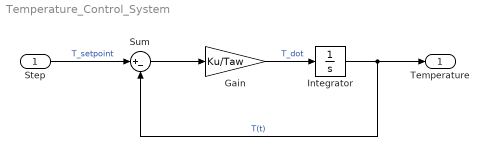
/*
 * File: Temperature_Control_System.c
 *
 * Code generated for Simulink model 'Temperature_Control_System'.
 *
 * Model version                  : 1.1
 * Simulink Coder version         : 24.2 (R2024b) 21-Jun-2024
 * C/C++ source code generated on : Thu May 29 09:29:35 2025
 *
 * Target selection: ert.tlc
 * Embedded hardware selection: Intel->x86-64 (Windows64)
 * Code generation objectives:
 *    1. Execution efficiency
 *    2. RAM efficiency
 * Validation result: Not run
 */

#include "Temperature_Control_System.h"

/* Private macros used by the generated code to access rtModel */
#ifndef rtmIsMajorTimeStep
#define rtmIsMajorTimeStep(rtm)        (((rtm)->Timing.simTimeStep) == MAJOR_TIME_STEP)
#endif

#ifndef rtmIsMinorTimeStep
#define rtmIsMinorTimeStep(rtm)        (((rtm)->Timing.simTimeStep) == MINOR_TIME_STEP)
#endif

#ifndef rtmSetTPtr
#define rtmSetTPtr(rtm, val)           ((rtm)->Timing.t = (val))
#endif

/* Continuous states */
X rtX;

/* Disabled State Vector */
XDis rtXDis;

/* Block signals and states (default storage) */
DW rtDW;

/* External inputs (root inport signals with default storage) */
ExtU rtU;

/* External outputs (root outports fed by signals with default storage) */
ExtY rtY;

/* Real-time model */
static RT_MODEL rtM_;
RT_MODEL *const rtM = &rtM_;

/* private model entry point functions */
extern void Temperature_Control_System_derivatives(void);

/*
 * This function updates continuous states using the ODE3 fixed-step
 * solver algorithm
 */
static void rt_ertODEUpdateContinuousStates(RTWSolverInfo *si )
{
  /* Solver Matrices */
  static const real_T rt_ODE3_A[3] = {
    1.0/2.0, 3.0/4.0, 1.0
  };

  static const real_T rt_ODE3_B[3][3] = {
    { 1.0/2.0, 0.0, 0.0 },

    { 0.0, 3.0/4.0, 0.0 },

    { 2.0/9.0, 1.0/3.0, 4.0/9.0 }
  };

  time_T t = rtsiGetT(si);
  time_T tnew = rtsiGetSolverStopTime(si);
  time_T h = rtsiGetStepSize(si);
  real_T *x = rtsiGetContStates(si);
  ODE3_IntgData *id = (ODE3_IntgData *)rtsiGetSolverData(si);
  real_T *y = id->y;
  real_T *f0 = id->f[0];
  real_T *f1 = id->f[1];
  real_T *f2 = id->f[2];
  real_T hB[3];
  int_T i;
  int_T nXc = 1;
  rtsiSetSimTimeStep(si,MINOR_TIME_STEP);

  /* Save the state values at time t in y, we'll use x as ynew. */
  (void) memcpy(y, x,
                (uint_T)nXc*sizeof(real_T));

  /* Assumes that rtsiSetT and ModelOutputs are up-to-date */
  /* f0 = f(t,y) */
  rtsiSetdX(si, f0);
  Temperature_Control_System_derivatives();

  /* f(:,2) = feval(odefile, t + hA(1), y + f*hB(:,1), args(:)(*)); */
  hB[0] = h * rt_ODE3_B[0][0];
  for (i = 0; i < nXc; i++) {
    x[i] = y[i] + (f0[i]*hB[0]);
  }

  rtsiSetT(si, t + h*rt_ODE3_A[0]);
  rtsiSetdX(si, f1);
  Temperature_Control_System_step();
  Temperature_Control_System_derivatives();

  /* f(:,3) = feval(odefile, t + hA(2), y + f*hB(:,2), args(:)(*)); */
  for (i = 0; i <= 1; i++) {
    hB[i] = h * rt_ODE3_B[1][i];
  }

  for (i = 0; i < nXc; i++) {
    x[i] = y[i] + (f0[i]*hB[0] + f1[i]*hB[1]);
  }

  rtsiSetT(si, t + h*rt_ODE3_A[1]);
  rtsiSetdX(si, f2);
  Temperature_Control_System_step();
  Temperature_Control_System_derivatives();

  /* tnew = t + hA(3);
     ynew = y + f*hB(:,3); */
  for (i = 0; i <= 2; i++) {
    hB[i] = h * rt_ODE3_B[2][i];
  }

  for (i = 0; i < nXc; i++) {
    x[i] = y[i] + (f0[i]*hB[0] + f1[i]*hB[1] + f2[i]*hB[2]);
  }

  rtsiSetT(si, tnew);
  rtsiSetSimTimeStep(si,MAJOR_TIME_STEP);
}

/* Model step function */
void Temperature_Control_System_step(void)
{
  if (rtmIsMajorTimeStep(rtM)) {
    /* set solver stop time */
    rtsiSetSolverStopTime(&rtM->solverInfo,((rtM->Timing.clockTick0+1)*
      rtM->Timing.stepSize0));
  }                                    /* end MajorTimeStep */

  /* Update absolute time of base rate at minor time step */
  if (rtmIsMinorTimeStep(rtM)) {
    rtM->Timing.t[0] = rtsiGetT(&rtM->solverInfo);
  }

  /* Outport: '<Root>/Temperature' incorporates:
   *  Integrator: '<Root>/Integrator'
   */
  rtY.Temperature = rtX.Integrator_CSTATE;

  /* Gain: '<Root>/Gain' incorporates:
   *  Inport: '<Root>/Step'
   *  Integrator: '<Root>/Integrator'
   *  Sum: '<Root>/Sum'
   */
  rtDW.T_dot = (rtU.T_setpoint - rtX.Integrator_CSTATE) * 0.03125;
  if (rtmIsMajorTimeStep(rtM)) {
    rt_ertODEUpdateContinuousStates(&rtM->solverInfo);

    /* Update absolute time for base rate */
    /* The "clockTick0" counts the number of times the code of this task has
     * been executed. The absolute time is the multiplication of "clockTick0"
     * and "Timing.stepSize0". Size of "clockTick0" ensures timer will not
     * overflow during the application lifespan selected.
     */
    ++rtM->Timing.clockTick0;
    rtM->Timing.t[0] = rtsiGetSolverStopTime(&rtM->solverInfo);

    {
      /* Update absolute timer for sample time: [0.001s, 0.0s] */
      /* The "clockTick1" counts the number of times the code of this task has
       * been executed. The resolution of this integer timer is 0.001, which is the step size
       * of the task. Size of "clockTick1" ensures timer will not overflow during the
       * application lifespan selected.
       */
      rtM->Timing.clockTick1++;
    }
  }                                    /* end MajorTimeStep */
}
